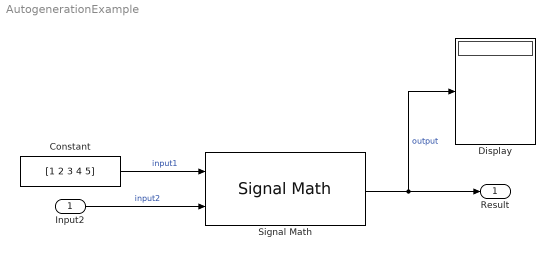
/*
 * AutogenerationExample.cpp
 *
 * Non-Degree Granting Education License -- for use at non-degree
 * granting, nonprofit, educational organizations only. Not for
 * government, commercial, or other organizational use.
 *
 * Code generation for model "AutogenerationExample".
 *
 * Model version              : 1.10
 * Simulink Coder version : 8.14 (R2018a) 06-Feb-2018
 * C++ source code generated on : Tue Jan 29 14:43:33 2019
 *
 * Target selection: grt.tlc
 * Note: GRT includes extra infrastructure and instrumentation for prototyping
 * Embedded hardware selection: Intel->x86-64 (Windows64)
 * Code generation objectives: Unspecified
 * Validation result: Not run
 */

#include "AutogenerationExample.h"
#include "AutogenerationExample_private.h"

/* Model step function */
void AutogenerationExampleModelClass::step()
{
    /* S-Function (BlockFactory): '<Root>/Signal Math' incorporates:
     *  Constant: '<Root>/Constant'
     *  Inport: '<Root>/Input2'
     *  Outport: '<Root>/Result'
     */
    {
        // Get the CoderBlockInformation from the PWork
        blockfactory::coder::CoderBlockInformation* blockInfo = nullptr;
        blockInfo = static_cast<blockfactory::coder::CoderBlockInformation*>(
            AutogenerationExample_DW.SignalMath_PWORK.blockPWork[1]);

        // Get the Block from the PWork
        blockfactory::core::Block* blockPtr = nullptr;
        blockPtr = static_cast<blockfactory::core::Block*>(
            AutogenerationExample_DW.SignalMath_PWORK.blockPWork[0]);

        // Calculate the output
        // --------------------
        bool ok;
        ok = blockPtr->output(blockInfo);

        // Report errors
        if (!ok) {
            std::string error = blockfactory::core::Log::getSingleton().getErrors();
            error = "[Output]" + error;

            // Trim the message if needed
            if (error.length() >= 1024) {
                error = error.substr(0, 1024 - 1);
            }

            // This shouldn't happen
            if (getRTM()->errorStatus) {
                delete getRTM()->errorStatus;
                getRTM()->errorStatus = nullptr;
            }

            getRTM()->errorStatus = new char[1024];
            sprintf(const_cast<char_T*>(getRTM()->errorStatus), "%s", error.c_str());
            return;
        }
    }

    // End of S-Function Block: <Root>/Signal Math
}
